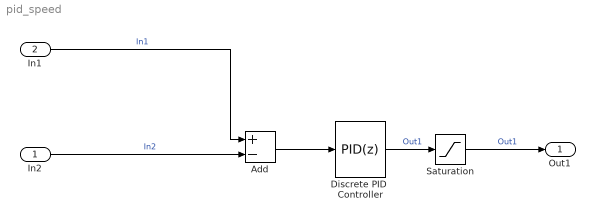
/*
 * File: pid_speed.c
 *
 * Real-Time Workshop code generated for Simulink model pid_speed.
 *
 * Model version                        : 1.38
 * Real-Time Workshop file version      : 7.4  (R2009b)  29-Jun-2009
 * Real-Time Workshop file generated on : Wed Dec 16 23:45:46 2020
 * TLC version                          : 7.4 (Jul 14 2009)
 * C/C++ source code generated on       : Wed Dec 16 23:45:47 2020
 *
 * Target selection: ert.tlc
 * Embedded hardware selection: Generic->32-bit Embedded Processor
 * Code generation objectives: Unspecified
 * Validation result: Not run
 */

#include "pid_speed.h"
#include "pid_speed_private.h"

/* Exported block signals */
real_T In2;                            /* '<Root>/In2' */
real_T In1;                            /* '<Root>/In1' */
real_T Out1;                           /* '<Root>/Saturation' */

/* Block states (auto storage) */
D_Work_pid_speed pid_speed_DWork;

/* Real-time model */
RT_MODEL_pid_speed pid_speed_M_;
RT_MODEL_pid_speed *pid_speed_M = &pid_speed_M_;

/* Model step function */
void pid_speed_step(void)
{
  real_T rtb_Add;
  real_T rtb_Sum;
  real_T rtb_FilterCoefficient;

  /* Sum: '<Root>/Add' incorporates:
   *  Inport: '<Root>/In1'
   *  Inport: '<Root>/In2'
   */
  rtb_Add = In1 - In2;

  /* Gain: '<S1>/Filter Coefficient' incorporates:
   *  DiscreteIntegrator: '<S1>/Filter'
   *  Gain: '<S1>/Derivative Gain'
   *  Sum: '<S1>/SumD'
   */
  rtb_FilterCoefficient = (pid_speed_P.DerivativeGain_Gain * rtb_Add -
    pid_speed_DWork.Filter_DSTATE) * pid_speed_P.FilterCoefficient_Gain;

  /* Sum: '<S1>/Sum' incorporates:
   *  DiscreteIntegrator: '<S1>/Integrator'
   *  Gain: '<S1>/Proportional Gain'
   */
  rtb_Sum = (pid_speed_P.ProportionalGain_Gain * rtb_Add +
             pid_speed_DWork.Integrator_DSTATE) + rtb_FilterCoefficient;

  /* Saturate: '<Root>/Saturation' */
  Out1 = rt_SATURATE(rtb_Sum, pid_speed_P.Saturation_LowerSat,
                     pid_speed_P.Saturation_UpperSat);

  /* Update for DiscreteIntegrator: '<S1>/Integrator' incorporates:
   *  Gain: '<S1>/Integral Gain'
   */
  pid_speed_DWork.Integrator_DSTATE = pid_speed_P.IntegralGain_Gain * rtb_Add *
    pid_speed_P.Integrator_gainval + pid_speed_DWork.Integrator_DSTATE;

  /* Update for DiscreteIntegrator: '<S1>/Filter' */
  pid_speed_DWork.Filter_DSTATE = pid_speed_P.Filter_gainval *
    rtb_FilterCoefficient + pid_speed_DWork.Filter_DSTATE;
}
